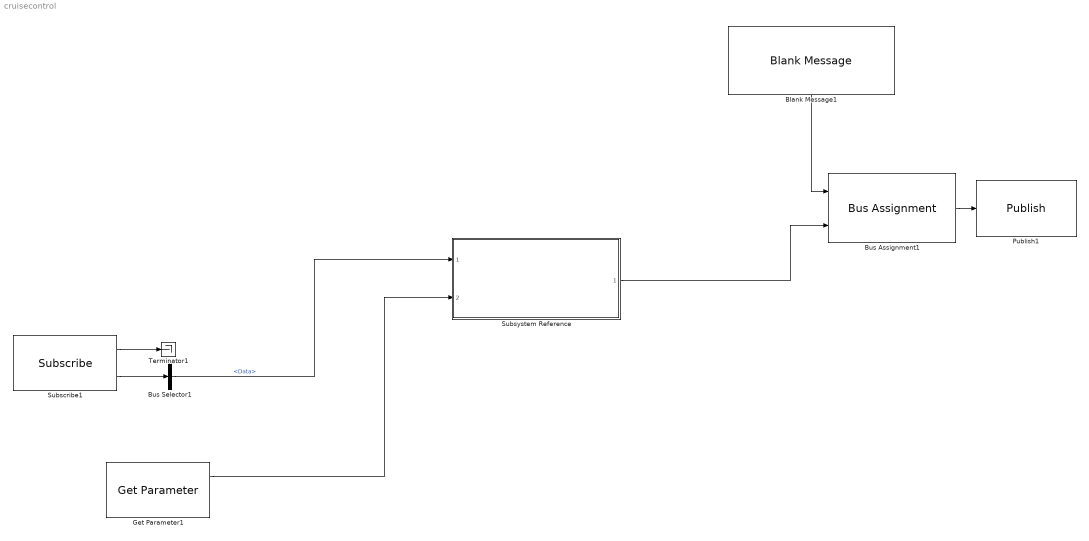
//
// Academic License - for use in teaching, academic research, and meeting
// course requirements at degree granting institutions only.  Not for
// government, commercial, or other organizational use.
//
// File: cruisecontrol.cpp
//
// Code generated for Simulink model 'cruisecontrol'.
//
// Model version                  : 1.34
// Simulink Coder version         : 25.2 (R2025b) 28-Jul-2025
// C/C++ source code generated on : Wed Jan  7 15:45:55 2026
//
// Target selection: ert.tlc
// Embedded hardware selection: Generic->Unspecified (assume 32-bit Generic)
// Code generation objectives: Unspecified
// Validation result: Not run
//
#include "cruisecontrol.h"
#include "rtwtypes.h"
#include "cruisecontrol_types.h"

// Block signals (default storage)
B_cruisecontrol_T cruisecontrol_B;

// Block states (default storage)
DW_cruisecontrol_T cruisecontrol_DW;

// Real-time model
RT_MODEL_cruisecontrol_T cruisecontrol_M_ = RT_MODEL_cruisecontrol_T();
RT_MODEL_cruisecontrol_T *const cruisecontrol_M = &cruisecontrol_M_;

// Model step function
void cruisecontrol_step(void)
{
  SL_Bus_cruisecontrol_std_msgs_Float64 rtb_BusAssignment1;
  SL_Bus_cruisecontrol_std_msgs_Float64 rtb_SourceBlock_o2_0;
  real_T b_value;
  boolean_T b_varargout_1;

  // MATLABSystem: '<Root>/Get Parameter1'
  ParamGet_cruisecontrol_96.get_parameter(&b_value);

  // Outputs for Atomic SubSystem: '<Root>/Subscribe1'
  // MATLABSystem: '<S3>/SourceBlock'
  b_varargout_1 = Sub_cruisecontrol_53.getLatestMessage(&rtb_SourceBlock_o2_0);

  // Outputs for Enabled SubSystem: '<S3>/Enabled Subsystem' incorporates:
  //   EnablePort: '<S5>/Enable'

  // Start for MATLABSystem: '<S3>/SourceBlock'
  if (b_varargout_1) {
    // SignalConversion generated from: '<S5>/In1'
    cruisecontrol_B.In1 = rtb_SourceBlock_o2_0;
  }

  // End of Start for MATLABSystem: '<S3>/SourceBlock'
  // End of Outputs for SubSystem: '<S3>/Enabled Subsystem'
  // End of Outputs for SubSystem: '<Root>/Subscribe1'

  // BusAssignment: '<Root>/Bus Assignment1' incorporates:
  //   Gain: '<S4>/Gain'
  //   MATLABSystem: '<Root>/Get Parameter1'
  //   Sum: '<S4>/Subtract'
  //
  rtb_BusAssignment1.Data = (b_value - cruisecontrol_B.In1.Data) * 0.8;

  // Outputs for Atomic SubSystem: '<Root>/Publish1'
  // MATLABSystem: '<S2>/SinkBlock'
  Pub_cruisecontrol_49.publish(&rtb_BusAssignment1);

  // End of Outputs for SubSystem: '<Root>/Publish1'
}
